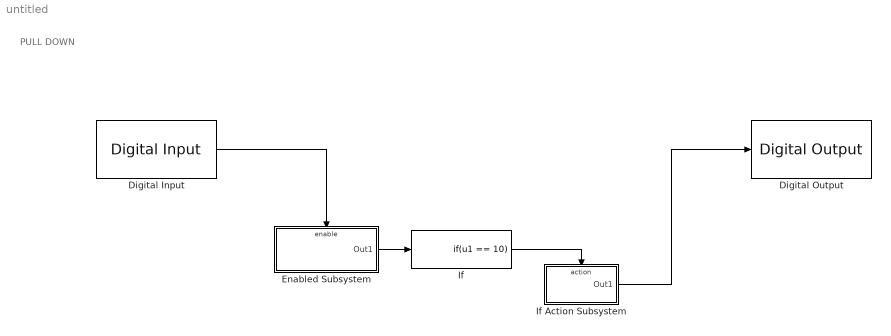
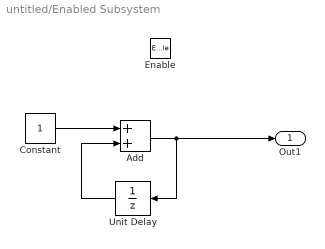
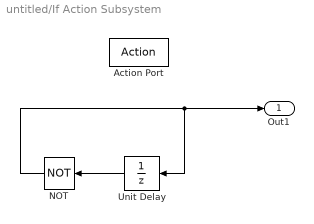
/*
 * File: untitled.c
 *
 * Code generated for Simulink model 'untitled'.
 *
 * Model version                  : 1.0
 * Simulink Coder version         : 9.8 (R2022b) 13-May-2022
 * C/C++ source code generated on : Sun Mar 17 17:23:48 2024
 *
 * Target selection: ert.tlc
 * Embedded hardware selection: Atmel->AVR
 * Code generation objectives: Unspecified
 * Validation result: Not run
 */

#include "untitled.h"
#include "rtwtypes.h"

/* Block states (default storage) */
DW_untitled_T untitled_DW;

/* Real-time model */
static RT_MODEL_untitled_T untitled_M_;
RT_MODEL_untitled_T *const untitled_M = &untitled_M_;

/* Model step function */
void untitled_step(void)
{
  boolean_T b_value;

  /* MATLABSystem: '<Root>/Digital Input' */
  if (untitled_DW.obj.SampleTime != untitled_P.DigitalInput_SampleTime) {
    untitled_DW.obj.SampleTime = untitled_P.DigitalInput_SampleTime;
  }

  b_value = readDigitalPin(2);

  /* Outputs for Enabled SubSystem: '<Root>/Enabled Subsystem' incorporates:
   *  EnablePort: '<S1>/Enable'
   */
  if (b_value) {
    if (!untitled_DW.EnabledSubsystem_MODE) {
      /* InitializeConditions for UnitDelay: '<S1>/Unit Delay' */
      untitled_DW.UnitDelay_DSTATE = untitled_P.UnitDelay_InitialCondition;
      untitled_DW.EnabledSubsystem_MODE = true;
    }

    /* Sum: '<S1>/Add' incorporates:
     *  Constant: '<S1>/Constant'
     *  UnitDelay: '<S1>/Unit Delay'
     */
    untitled_DW.UnitDelay_DSTATE += untitled_P.Constant_Value;
  } else {
    untitled_DW.EnabledSubsystem_MODE = false;
  }

  /* End of MATLABSystem: '<Root>/Digital Input' */
  /* End of Outputs for SubSystem: '<Root>/Enabled Subsystem' */

  /* If: '<Root>/If' incorporates:
   *  UnitDelay: '<S1>/Unit Delay'
   */
  if (untitled_DW.UnitDelay_DSTATE == 10.0) {
    /* Outputs for IfAction SubSystem: '<Root>/If Action Subsystem' incorporates:
     *  ActionPort: '<S2>/Action Port'
     */
    /* Logic: '<S2>/NOT' incorporates:
     *  UnitDelay: '<S2>/Unit Delay'
     */
    untitled_DW.UnitDelay_DSTATE_d = !untitled_DW.UnitDelay_DSTATE_d;

    /* End of Outputs for SubSystem: '<Root>/If Action Subsystem' */
  }

  /* End of If: '<Root>/If' */

  /* MATLABSystem: '<Root>/Digital Output' incorporates:
   *  UnitDelay: '<S2>/Unit Delay'
   */
  writeDigitalPin(5, (uint8_T)untitled_DW.UnitDelay_DSTATE_d);
}
